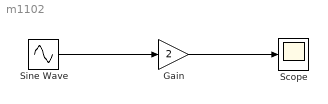
/*
 * m1102.c
 * 
 * Real-Time Workshop code generation for Simulink model "m1102.mdl".
 *
 * Model Version              : 1.2
 * Real-Time Workshop version : 6.1  (R14SP1)  05-Sep-2004
 * C source code generated on : Tue May 10 09:45:00 2005
 */

#include "m1102.h"
#include "m1102_private.h"

#include <stdio.h>
#include "m1102_dt.h"

/* Block signals (auto storage) */
BlockIO_m1102 m1102_B;

/* Block states (auto storage) */
D_Work_m1102 m1102_DWork;

/* Real-time model */
rtModel_m1102 m1102_M_;
rtModel_m1102 *m1102_M = &m1102_M_;

/* Model output function */
void m1102_output(int_T tid)
{

  /* local block i/o variables */

  real_T rtb_SineWave;

  /* Sin: '<Root>/Sine Wave' */
  rtb_SineWave = m1102_P.SineWave_Amp *
    sin(m1102_P.SineWave_Freq * m1102_M->Timing.t[0] + m1102_P.SineWave_Phase) +
    m1102_P.SineWave_Bias;

  /* Gain: '<Root>/Gain' */
  m1102_B.Gain = rtb_SineWave * m1102_P.Gain_Gain;
}

/* Model update function */
void m1102_update(int_T tid)
{

  /* Update absolute time for base rate */

  if(!(++m1102_M->Timing.clockTick0)) ++m1102_M->Timing.clockTickH0;
  m1102_M->Timing.t[0] = m1102_M->Timing.clockTick0 * m1102_M->Timing.stepSize0
    + m1102_M->Timing.clockTickH0 * m1102_M->Timing.stepSize0 * 4294967296.0;

  {
    /* Update absolute timer for sample time: [0.01s, 0.0s] */

    if(!(++m1102_M->Timing.clockTick1)) ++m1102_M->Timing.clockTickH1;
    m1102_M->Timing.t[1] = m1102_M->Timing.clockTick1 *
      m1102_M->Timing.stepSize1 + m1102_M->Timing.clockTickH1 *
      m1102_M->Timing.stepSize1 * 4294967296.0;
  }
}
